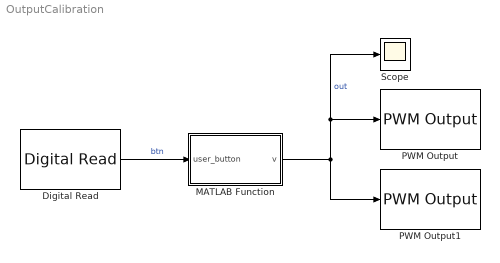
== matlab function OutputCalibration/MATLAB Function ==
function v = fcn(user_button)

persistent m db i;
Fs = 200;

if isempty(m)
    m = 0;
    i = 0;
    db = 0;
end

if user_button == 1
    if db == 0
        db = 1;
        m = m + 10;
    end
end

if db == 1
    if i > 1*Fs
        db = 0;
        i = 0;
    else
        i = i + 1;
    end
end

v = m;
end

/*
 * Academic License - for use in teaching, academic research, and meeting
 * course requirements at degree granting institutions only.  Not for
 * government, commercial, or other organizational use.
 *
 * File: OutputCalibration.c
 *
 * Code generated for Simulink model 'OutputCalibration'.
 *
 * Model version                  : 1.21
 * Simulink Coder version         : 24.2 (R2024b) 21-Jun-2024
 * C/C++ source code generated on : Wed Oct 16 11:57:03 2024
 *
 * Target selection: ert.tlc
 * Embedded hardware selection: ARM Compatible->ARM Cortex-M
 * Code generation objectives: Unspecified
 * Validation result: Not run
 */

#include "OutputCalibration.h"
#include "OutputCalibration_private.h"

/* Block signals (default storage) */
B_OutputCalibration_T OutputCalibration_B;

/* Block states (default storage) */
DW_OutputCalibration_T OutputCalibration_DW;

/* Real-time model */
static RT_MODEL_OutputCalibration_T OutputCalibration_M_;
RT_MODEL_OutputCalibration_T *const OutputCalibration_M = &OutputCalibration_M_;

/* Model step function */
void OutputCalibration_step(void)
{
  /* MATLABSystem: '<Root>/Digital Read' */
  OutputCalibration_B.btn = MW_digitalIO_read
    (OutputCalibration_DW.obj.MW_DIGITALIO_HANDLE);

  /* MATLAB Function: '<Root>/MATLAB Function' */
  if (OutputCalibration_B.btn && (OutputCalibration_DW.db == 0.0)) {
    OutputCalibration_DW.db = 1.0;
    OutputCalibration_DW.m += 10.0;
  }

  if (OutputCalibration_DW.db == 1.0) {
    if (OutputCalibration_DW.i > 200.0) {
      OutputCalibration_DW.db = 0.0;
      OutputCalibration_DW.i = 0.0;
    } else {
      OutputCalibration_DW.i++;
    }
  }

  OutputCalibration_B.v = OutputCalibration_DW.m;

  /* End of MATLAB Function: '<Root>/MATLAB Function' */

  /* MATLABSystem: '<Root>/PWM Output' */
  MW_PWM_SetDutyCycle(OutputCalibration_DW.obj_o.MW_PWM_HANDLE,
                      OutputCalibration_B.v);

  /* MATLABSystem: '<Root>/PWM Output1' */
  MW_PWM_SetDutyCycle(OutputCalibration_DW.obj_p.MW_PWM_HANDLE,
                      OutputCalibration_B.v);

  /* Update absolute time for base rate */
  /* The "clockTick0" counts the number of times the code of this task has
   * been executed. The absolute time is the multiplication of "clockTick0"
   * and "Timing.stepSize0". Size of "clockTick0" ensures timer will not
   * overflow during the application lifespan selected.
   */
  OutputCalibration_M->Timing.taskTime0 =
    ((time_T)(++OutputCalibration_M->Timing.clockTick0)) *
    OutputCalibration_M->Timing.stepSize0;
}
